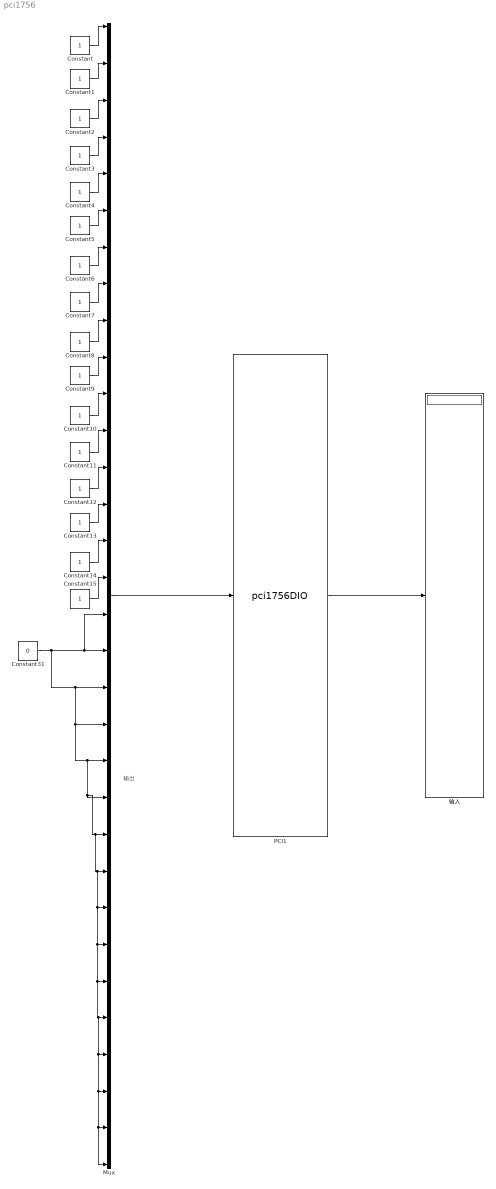
/*
 * pci1756.c
 *
 * Code generation for model "pci1756".
 *
 * Model version              : 1.9
 * Simulink Coder version : 8.11 (R2016b) 25-Aug-2016
 * C source code generated on : Mon Jul 12 11:27:47 2021
 *
 * Target selection: slrt.tlc
 * Note: GRT includes extra infrastructure and instrumentation for prototyping
 * Embedded hardware selection: Generic->32-bit x86 compatible
 * Code generation objectives: Unspecified
 * Validation result: Not run
 */

#include "rt_logging_mmi.h"
#include "pci1756_capi.h"
#include "pci1756.h"
#include "pci1756_private.h"

/* Block signals (auto storage) */
B_pci1756_T pci1756_B;

/* Block states (auto storage) */
DW_pci1756_T pci1756_DW;

/* Real-time model */
RT_MODEL_pci1756_T pci1756_M_;
RT_MODEL_pci1756_T *const pci1756_M = &pci1756_M_;

/* Model output function */
static void pci1756_output(void)
{
  /* Constant: '<Root>/Constant' */
  pci1756_B.Constant = pci1756_P.Constant_Value;

  /* Constant: '<Root>/Constant1' */
  pci1756_B.Constant1 = pci1756_P.Constant1_Value;

  /* Constant: '<Root>/Constant2' */
  pci1756_B.Constant2 = pci1756_P.Constant2_Value;

  /* Constant: '<Root>/Constant3' */
  pci1756_B.Constant3 = pci1756_P.Constant3_Value;

  /* Constant: '<Root>/Constant4' */
  pci1756_B.Constant4 = pci1756_P.Constant4_Value;

  /* Constant: '<Root>/Constant5' */
  pci1756_B.Constant5 = pci1756_P.Constant5_Value;

  /* Constant: '<Root>/Constant6' */
  pci1756_B.Constant6 = pci1756_P.Constant6_Value;

  /* Constant: '<Root>/Constant7' */
  pci1756_B.Constant7 = pci1756_P.Constant7_Value;

  /* Constant: '<Root>/Constant8' */
  pci1756_B.Constant8 = pci1756_P.Constant8_Value;

  /* Constant: '<Root>/Constant9' */
  pci1756_B.Constant9 = pci1756_P.Constant9_Value;

  /* Constant: '<Root>/Constant10' */
  pci1756_B.Constant10 = pci1756_P.Constant10_Value;

  /* Constant: '<Root>/Constant11' */
  pci1756_B.Constant11 = pci1756_P.Constant11_Value;

  /* Constant: '<Root>/Constant12' */
  pci1756_B.Constant12 = pci1756_P.Constant12_Value;

  /* Constant: '<Root>/Constant13' */
  pci1756_B.Constant13 = pci1756_P.Constant13_Value;

  /* Constant: '<Root>/Constant14' */
  pci1756_B.Constant14 = pci1756_P.Constant14_Value;

  /* Constant: '<Root>/Constant15' */
  pci1756_B.Constant15 = pci1756_P.Constant15_Value;

  /* Constant: '<Root>/Constant31' */
  pci1756_B.Constant31 = pci1756_P.Constant31_Value;

  /* Level2 S-Function Block: '<Root>/PCI1' (pci1756DIO) */
  {
    SimStruct *rts = pci1756_M->childSfunctions[0];
    sfcnOutputs(rts, 0);
  }
}

/* Model update function */
static void pci1756_update(void)
{
  /* Update absolute time for base rate */
  /* The "clockTick0" counts the number of times the code of this task has
   * been executed. The absolute time is the multiplication of "clockTick0"
   * and "Timing.stepSize0". Size of "clockTick0" ensures timer will not
   * overflow during the application lifespan selected.
   * Timer of this task consists of two 32 bit unsigned integers.
   * The two integers represent the low bits Timing.clockTick0 and the high bits
   * Timing.clockTickH0. When the low bit overflows to 0, the high bits increment.
   */
  if (!(++pci1756_M->Timing.clockTick0)) {
    ++pci1756_M->Timing.clockTickH0;
  }

  pci1756_M->Timing.t[0] = pci1756_M->Timing.clockTick0 *
    pci1756_M->Timing.stepSize0 + pci1756_M->Timing.clockTickH0 *
    pci1756_M->Timing.stepSize0 * 4294967296.0;
}
